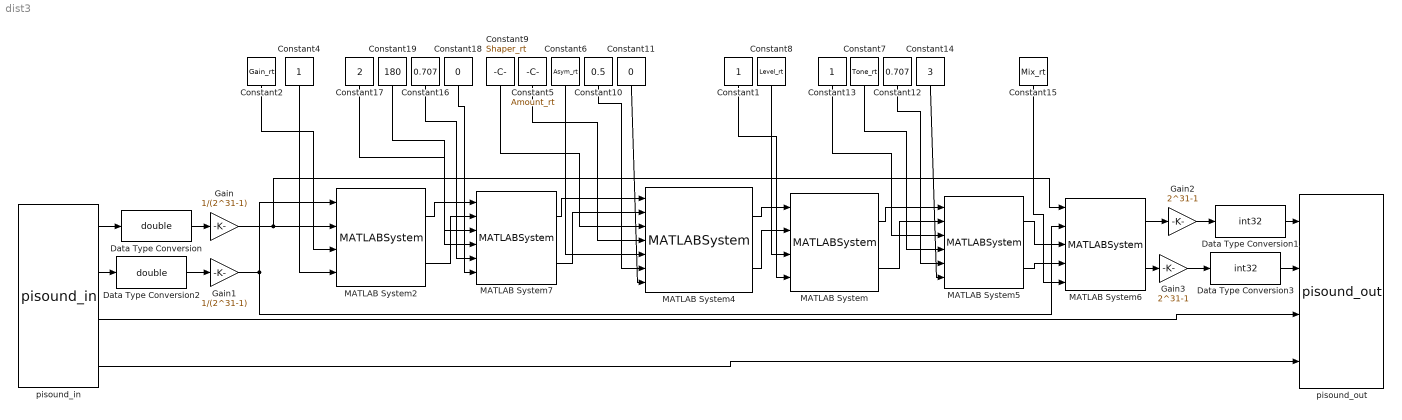
/*
 * Academic License - for use in teaching, academic research, and meeting
 * course requirements at degree granting institutions only.  Not for
 * government, commercial, or other organizational use.
 *
 * File: dist3.c
 *
 * Code generated for Simulink model 'dist3'.
 *
 * Model version                  : 1.38
 * Simulink Coder version         : 25.2 (R2025b) 28-Jul-2025
 * C/C++ source code generated on : Thu Feb 26 14:59:43 2026
 *
 * Target selection: ert.tlc
 * Embedded hardware selection: Intel->x86-64 (Windows64)
 * Code generation objectives: Unspecified
 * Validation result: Not run
 */

#include "dist3.h"
#include "rtwtypes.h"
#include "dist3_types.h"
#include "dist3_private.h"
#include "rt_nonfinite.h"
#include <math.h>
#include <string.h>

/* Block signals (default storage) */
B_dist3_T dist3_B;

/* Block states (default storage) */
DW_dist3_T dist3_DW;

/* Real-time model */
static RT_MODEL_dist3_T dist3_M_;
RT_MODEL_dist3_T *const dist3_M = &dist3_M_;

/* Forward declaration for local functions */
static void dist3_filter(real_T b[3], real_T a[3], const real_T x[128], const
  real_T zi[2], real_T y[128], real_T zf[2]);

/* Forward declaration for local functions */
static boolean_T dist3_isequal(const real_T varargin_1[257], const real_T
  varargin_2[257]);
static void dist3_filter_m(const real_T b[15], const real_T x[256], const real_T
  zi[14], real_T y[256], real_T zf[14]);
static void dist3_filter_mb(const real_T b[15], const real_T x[512], const
  real_T zi[14], real_T y[512], real_T zf[14]);
static real_T dist3_lut_ws_sys_shapeOne(const lut_ws_sys_dist3_T *obj, real_T x,
  uint8_T md, real_T drive, real_T b, real_T cheb3, real_T cheb5, const real_T
  xGrid[257], const real_T yGrid[257]);
static void dis_lut_ws_sys_processChannelOS(const lut_ws_sys_dist3_T *obj, const
  real_T x[128], uint8_T os, uint8_T md, real_T drive, real_T b, real_T cheb3,
  real_T cheb5, const real_T xGrid[257], const real_T yGrid[257], real_T zUp1[14],
  real_T zUp2[14], real_T zDn1[14], real_T zDn2[14], real_T y[128]);
static void dist3_filter(real_T b[3], real_T a[3], const real_T x[128], const
  real_T zi[2], real_T y[128], real_T zf[2])
{
  int32_T b_j;
  int32_T e_k;
  int32_T naxpy;

  /* Start for MATLABSystem: '<Root>/MATLAB System5' */
  if ((!rtIsInf(a[0])) && (!rtIsNaN(a[0])) && (!(a[0] == 0.0)) && (a[0] != 1.0))
  {
    b[0] /= a[0];
    b[1] /= a[0];
    b[2] /= a[0];
    a[1] /= a[0];
    a[2] /= a[0];
    a[0] = 1.0;
  }

  zf[0] = 0.0;
  y[0] = zi[0];
  zf[1] = 0.0;
  y[1] = zi[1];
  memset(&y[2], 0, 126U * sizeof(real_T));
  for (e_k = 0; e_k < 128; e_k++) {
    real_T as;
    int32_T y_tmp;

    /* Start for MATLABSystem: '<Root>/MATLAB System5' */
    if (128 - e_k <= 3) {
      naxpy = 128 - e_k;
    } else {
      naxpy = 3;
    }

    for (b_j = 0; b_j < naxpy; b_j++) {
      y_tmp = e_k + b_j;

      /* Start for MATLABSystem: '<Root>/MATLAB System5' */
      y[y_tmp] += x[e_k] * b[b_j];
    }

    /* Start for MATLABSystem: '<Root>/MATLAB System5' */
    if (127 - e_k <= 2) {
      naxpy = 127 - e_k;
    } else {
      naxpy = 2;
    }

    as = -y[e_k];
    for (b_j = 0; b_j < naxpy; b_j++) {
      y_tmp = (b_j + e_k) + 1;
      y[y_tmp] += a[b_j + 1] * as;
    }
  }

  for (e_k = 0; e_k < 2; e_k++) {
    for (naxpy = 0; naxpy <= e_k; naxpy++) {
      /* Start for MATLABSystem: '<Root>/MATLAB System5' */
      zf[naxpy] += b[(naxpy - e_k) + 2] * x[e_k + 126];
    }
  }

  for (e_k = 0; e_k < 2; e_k++) {
    for (naxpy = 0; naxpy <= e_k; naxpy++) {
      /* Start for MATLABSystem: '<Root>/MATLAB System5' */
      zf[naxpy] += a[(naxpy - e_k) + 2] * -y[e_k + 126];
    }
  }
}

real_T rt_powd_snf(real_T u0, real_T u1)
{
  real_T y;
  if (rtIsNaN(u0) || rtIsNaN(u1)) {
    y = (rtNaN);
  } else {
    real_T tmp;
    real_T tmp_0;
    tmp = fabs(u0);
    tmp_0 = fabs(u1);
    if (rtIsInf(u1)) {
      if (tmp == 1.0) {
        y = 1.0;
      } else if (tmp > 1.0) {
        if (u1 > 0.0) {
          y = (rtInf);
        } else {
          y = 0.0;
        }
      } else if (u1 > 0.0) {
        y = 0.0;
      } else {
        y = (rtInf);
      }
    } else if (tmp_0 == 0.0) {
      y = 1.0;
    } else if (tmp_0 == 1.0) {
      if (u1 > 0.0) {
        y = u0;
      } else {
        y = 1.0 / u0;
      }
    } else if (u1 == 2.0) {
      y = u0 * u0;
    } else if ((u1 == 0.5) && (u0 >= 0.0)) {
      y = sqrt(u0);
    } else if ((u0 < 0.0) && (u1 > floor(u1))) {
      y = (rtNaN);
    } else {
      y = pow(u0, u1);
    }
  }

  return y;
}

/* System initialize for atomic system: */
void dist3_MATLABSystem5_Init(DW_MATLABSystem5_dist3_T *localDW)
{
  /* Start for MATLABSystem: '<Root>/MATLAB System5' */
  localDW->objisempty = true;
  localDW->obj.isInitialized = 1;

  /*  arranca en bypass */
  localDW->obj.b[0] = 1.0;
  localDW->obj.a[0] = 1.0;
  localDW->obj.b[1] = 0.0;
  localDW->obj.a[1] = 0.0;
  localDW->obj.b[2] = 0.0;
  localDW->obj.a[2] = 0.0;

  /*  fuerza recálculo en el primer frame */
  localDW->obj.lastType = MAX_uint8_T;
  localDW->obj.lastFreq = (rtNaN);
  localDW->obj.lastQ = (rtNaN);
  localDW->obj.lastGain = (rtNaN);

  /* InitializeConditions for MATLABSystem: '<Root>/MATLAB System5' */
  localDW->obj.zL[0] = 0.0;
  localDW->obj.zR[0] = 0.0;
  localDW->obj.zL[1] = 0.0;
  localDW->obj.zR[1] = 0.0;
}

/* Output and update for atomic system: */
void dist3_MATLABSystem5(const real_T rtu_0[128], const real_T rtu_1[128],
  uint8_T rtu_2, real_T rtu_3, real_T rtu_4, real_T rtu_5,
  B_MATLABSystem5_dist3_T *localB, DW_MATLABSystem5_dist3_T *localDW)
{
  real_T tmp_0[3];
  real_T tmp_1[3];
  real_T tmp[2];
  real_T A;
  real_T G;
  real_T Q;
  real_T a0;
  real_T a0_tmp;
  real_T a0_tmp_0;
  real_T f;
  real_T p;
  real_T q;
  real_T sqrtA;
  real_T wc;
  int32_T t;

  /* MATLABSystem: '<Root>/MATLAB System5' */
  /*  acepta double y castea */
  if ((rtu_2 != localDW->obj.lastType) || (rtu_3 != localDW->obj.lastFreq) ||
      (rtu_4 != localDW->obj.lastQ) || (rtu_5 != localDW->obj.lastGain)) {
    f = rtu_3;
    Q = rtu_4;
    G = rtu_5;
    t = rtu_2;
    if (rtIsInf(rtu_3) || rtIsNaN(rtu_3)) {
      f = 1000.0;
    }

    if (rtIsInf(rtu_4) || rtIsNaN(rtu_4)) {
      Q = 0.707;
    }

    if (rtIsInf(rtu_5) || rtIsNaN(rtu_5)) {
      G = 0.0;
    }

    /*  límites prácticos */
    if (f < 0.1) {
      f = 0.1;
    }

    if (f > 23952.0) {
      f = 23952.0;
    }

    if (Q < 0.001) {
      Q = 0.001;
    }

    wc = f / 48000.0 * 6.2831853071795862;
    if (rtu_2 < 1) {
      t = 1;
    } else if (rtu_2 > 7) {
      t = 7;
    }

    localDW->obj.b[0] = 1.0;
    localDW->obj.a[0] = 1.0;
    localDW->obj.b[1] = 0.0;
    localDW->obj.a[1] = 0.0;
    localDW->obj.b[2] = 0.0;
    localDW->obj.a[2] = 0.0;
    switch ((uint8_T)t) {
     case 1U:
      /*  lowpass */
      /* Cálculo de los coefifientes de un Filtro Paso-Bajo de 2º orden */
      /* Parámetos de entrada:  */
      /* wo = frecuencia de corte a -3dB (en radianes) */
      /* Parametros de salida: */
      /* Coeficientes [b,a] de un filtro IIR de segundo orden */
      p = cos(wc);
      G = 1.4142135623730951 * sin(wc);

      /* Normalización de coeficientes */
      /* fvtool(b,a); */
      f = (1.0 - p) / (G + 2.0);
      localDW->obj.b[0] = f;
      localDW->obj.b[1] = (1.0 - p) * 2.0 / (G + 2.0);
      localDW->obj.b[2] = f;
      localDW->obj.a[0] = (G + 2.0) / (G + 2.0);
      localDW->obj.a[1] = -4.0 * p / (G + 2.0);
      localDW->obj.a[2] = (2.0 - G) / (G + 2.0);
      break;

     case 2U:
      /*  highpass */
      /* Cálculo de los coefifientes de un Filtro Paso-Alto de 2º orden */
      /* Parámetos de entrada:  */
      /* wo = frecuencia de corte a -3dB (en radianes) */
      /* Parametros de salida: */
      /* Coeficientes [b,a] de un filtro IIR de segundo orden */
      p = cos(wc);

      /*  Coeficientes del ecualizador */
      G = 1.4142135623730951 * sin(wc);

      /* Normalización de coeficientes */
      /*  */
      /* fvtool(b,a); */
      f = (p + 1.0) / (G + 2.0);
      localDW->obj.b[0] = f;
      localDW->obj.b[1] = (p + 1.0) * -2.0 / (G + 2.0);
      localDW->obj.b[2] = f;
      localDW->obj.a[0] = (G + 2.0) / (G + 2.0);
      localDW->obj.a[1] = -4.0 * p / (G + 2.0);
      localDW->obj.a[2] = (2.0 - G) / (G + 2.0);
      break;

     case 3U:
      /*  bandpass (0 dB peak) */
      /* Cálculo de los coefifientes de un Filtro Paso-Banda 2º orden */
      /* Parámetos de entrada:  */
      /* wo = frecuencia central (en radianes) */
      /* Q = factor de calidad */
      /*  */
      /* Parametros de salida: */
      /* Coeficientes [b,a] de un filtro IIR de segundo orden */
      G = sin(wc) / Q;

      /*  <-- Q aquí */
      /*  Coeficientes del ecualizador */
      /* Normalización de coeficientes */
      /* fvtool(b,a); */
      localDW->obj.b[0] = G / (G + 2.0);
      localDW->obj.b[1] = 0.0 / (G + 2.0);
      localDW->obj.b[2] = -G / (G + 2.0);
      localDW->obj.a[0] = (G + 2.0) / (G + 2.0);
      localDW->obj.a[1] = -4.0 * cos(wc) / (G + 2.0);
      localDW->obj.a[2] = (2.0 - G) / (G + 2.0);
      break;

     case 4U:
      /*  bandreject / notch */
      /* Cálculo de los coefifientes de un Filtro Paso-Banda 2º orden */
      /* Parámetos de entrada:  */
      /* wo = frecuencia central (en radianes) */
      /* Q = factor de calidad */
      /*  */
      /* Parametros de salida: */
      /* Coeficientes [b,a] de un filtro IIR de segundo orden */
      /*  Coeficientes del ecualizador */
      G = sin(wc) / Q;

      /* Normalización de coeficientes */
      /* fvtool(b,a); */
      f = 2.0 / (G + 2.0);
      localDW->obj.b[0] = f;
      wc = -4.0 * cos(wc) / (G + 2.0);
      localDW->obj.b[1] = wc;
      localDW->obj.b[2] = f;
      localDW->obj.a[0] = (G + 2.0) / (G + 2.0);
      localDW->obj.a[1] = wc;
      localDW->obj.a[2] = (2.0 - G) / (G + 2.0);
      break;

     case 5U:
      /*  lowshelf (RBJ, usando Q como S) */
      /* Cálculo de los coefifientes de un Filtro Paso-Banda 2º orden */
      /* Parámetos de entrada:  */
      /* wo = frecuencia central (en radianes) */
      /* Q = factor de calidad */
      /*  */
      /* Parametros de salida: */
      /* Coeficientes [b,a] de un filtro IIR de segundo orden */
      A = rt_powd_snf(10.0, G / 40.0);
      sqrtA = sqrt(A);
      p = cos(wc);
      q = sin(wc);

      /*  Coeficientes del ecualizador */
      G = 1.0 / A;
      a0_tmp = (1.0 - G) * p + (G + 1.0);
      a0_tmp_0 = 1.4142135623730951 * q / sqrtA;
      a0 = a0_tmp + a0_tmp_0;

      /* Normalización de coeficientes */
      /* fvtool(b,a); */
      f = (1.0 - A) * p + (A + 1.0);
      wc = 1.4142135623730951 * sqrtA * q;
      localDW->obj.b[0] = (f + wc) / a0;
      localDW->obj.b[1] = ((A + 1.0) * p + (1.0 - A)) * -2.0 / a0;
      localDW->obj.b[2] = (f - wc) / a0;
      localDW->obj.a[0] = a0 / a0;
      localDW->obj.a[1] = ((G + 1.0) * p + (1.0 - G)) * -2.0 / a0;
      localDW->obj.a[2] = (a0_tmp - a0_tmp_0) / a0;
      break;

     case 6U:
      /*  highshelf (RBJ, usando Q como S) */
      /* Cálculo de los coefifientes de un Filtro Paso-Banda 2º orden */
      /* Parámetos de entrada:  */
      /* wo = frecuencia central (en radianes) */
      /* Q = factor de calidad */
      /*  */
      /* Parametros de salida: */
      /* Coeficientes [b,a] de un filtro IIR de segundo orden */
      A = rt_powd_snf(10.0, G / 40.0);
      sqrtA = sqrt(A);
      p = cos(wc);
      q = sin(wc);

      /*  Coeficientes del ecualizador */
      G = (1.0 - A) * p + (A + 1.0);
      a0_tmp = 1.4142135623730951 * sqrtA * q;
      a0 = G + a0_tmp;
      a0_tmp_0 = A * A;

      /* Normalización de coeficientes */
      /* fvtool(b,a); */
      f = 1.0 / A;
      wc = (1.0 - f) * p + (f + 1.0);
      sqrtA = 1.4142135623730951 * q / sqrtA;
      localDW->obj.b[0] = (wc + sqrtA) * a0_tmp_0 / a0;
      localDW->obj.b[1] = ((f + 1.0) * p + (1.0 - f)) * -2.0 * a0_tmp_0 / a0;
      localDW->obj.b[2] = (wc - sqrtA) * a0_tmp_0 / a0;
      localDW->obj.a[0] = a0 / a0;
      localDW->obj.a[1] = ((A + 1.0) * p + (1.0 - A)) * -2.0 / a0;
      localDW->obj.a[2] = (G - a0_tmp) / a0;
      break;

     case 7U:
      /*  peaking / centershelf */
      /* Cálculo de los coefifientes de un Filtro Paso-Banda 2º orden */
      /* Parámetos de entrada:  */
      /* wo = frecuencia central (en radianes) */
      /* Q = factor de calidad */
      /*  */
      /* Parametros de salida: */
      /* Coeficientes [b,a] de un filtro IIR de segundo orden */
      A = rt_powd_snf(10.0, G / 40.0);
      f = sin(wc) / (2.0 * Q);

      /*  Coeficientes del ecualizador */
      G = f / A;

      /* Normalización de coeficientes */
      /* fvtool(b,a); */
      f *= A;
      localDW->obj.b[0] = (f + 1.0) / (G + 1.0);
      wc = -2.0 * cos(wc) / (G + 1.0);
      localDW->obj.b[1] = wc;
      localDW->obj.b[2] = (1.0 - f) / (G + 1.0);
      localDW->obj.a[0] = (G + 1.0) / (G + 1.0);
      localDW->obj.a[1] = wc;
      localDW->obj.a[2] = (1.0 - G) / (G + 1.0);
      break;
    }

    localDW->obj.lastType = rtu_2;
    localDW->obj.lastFreq = rtu_3;
    localDW->obj.lastQ = Q;
    localDW->obj.lastGain = rtu_5;
  }

  /*  bp es logical */
  for (t = 0; t < 2; t++) {
    tmp[t] = localDW->obj.zL[t];
  }

  for (t = 0; t < 3; t++) {
    tmp_0[t] = localDW->obj.b[t];
  }

  for (t = 0; t < 3; t++) {
    tmp_1[t] = localDW->obj.a[t];
  }

  /* MATLABSystem: '<Root>/MATLAB System5' */
  dist3_filter(tmp_0, tmp_1, rtu_0, tmp, localB->MATLABSystem5_o1,
               localDW->obj.zL);

  /* MATLABSystem: '<Root>/MATLAB System5' */
  for (t = 0; t < 2; t++) {
    tmp[t] = localDW->obj.zR[t];
  }

  for (t = 0; t < 3; t++) {
    tmp_0[t] = localDW->obj.b[t];
  }

  for (t = 0; t < 3; t++) {
    tmp_1[t] = localDW->obj.a[t];
  }

  /* MATLABSystem: '<Root>/MATLAB System5' */
  dist3_filter(tmp_0, tmp_1, rtu_1, tmp, localB->MATLABSystem5_o2,
               localDW->obj.zR);

  /* MATLABSystem: '<Root>/MATLAB System5' */
  localDW->zL[0] = localDW->obj.zL[0];
  localDW->zR[0] = localDW->obj.zR[0];
  localDW->zL[1] = localDW->obj.zL[1];
  localDW->zR[1] = localDW->obj.zR[1];
}

/* Termination for atomic system: */
void dist3_MATLABSystem5_Term(DW_MATLABSystem5_dist3_T *localDW)
{
  /* Terminate for MATLABSystem: '<Root>/MATLAB System5' */
  localDW->zL[0] = localDW->obj.zL[0];
  localDW->zR[0] = localDW->obj.zR[0];
  localDW->zL[1] = localDW->obj.zL[1];
  localDW->zR[1] = localDW->obj.zR[1];
}

static boolean_T dist3_isequal(const real_T varargin_1[257], const real_T
  varargin_2[257])
{
  int32_T b_k;
  boolean_T exitg1;
  boolean_T p;
  boolean_T p_0;
  p = false;

  /* Start for MATLABSystem: '<Root>/MATLAB System4' */
  p_0 = true;
  b_k = 0;
  exitg1 = false;
  while ((!exitg1) && (b_k < 257)) {
    if (!(varargin_1[b_k] == varargin_2[b_k])) {
      p_0 = false;
      exitg1 = true;
    } else {
      b_k++;
    }
  }

  if (p_0) {
    p = true;
  }

  return p;
}

real_T rt_roundd_snf(real_T u)
{
  real_T y;
  if (fabs(u) < 4.503599627370496E+15) {
    if (u >= 0.5) {
      y = floor(u + 0.5);
    } else if (u > -0.5) {
      y = u * 0.0;
    } else {
      y = ceil(u - 0.5);
    }
  } else {
    y = u;
  }

  return y;
}

static void dist3_filter_m(const real_T b[15], const real_T x[256], const real_T
  zi[14], real_T y[256], real_T zf[14])
{
  int32_T b_j;
  int32_T b_k;
  for (b_k = 0; b_k < 14; b_k++) {
    zf[b_k] = 0.0;
    y[b_k] = zi[b_k];
  }

  memset(&y[14], 0, 242U * sizeof(real_T));
  for (b_k = 0; b_k < 15; b_k++) {
    for (b_j = b_k + 1; b_j < 257; b_j++) {
      y[b_j - 1] += x[(b_j - b_k) - 1] * b[b_k];
    }
  }

  for (b_k = 0; b_k < 14; b_k++) {
    for (b_j = 0; b_j <= b_k; b_j++) {
      /* Start for MATLABSystem: '<Root>/MATLAB System4' */
      zf[b_j] += b[(b_j - b_k) + 14] * x[b_k + 242];
    }
  }
}

static void dist3_filter_mb(const real_T b[15], const real_T x[512], const
  real_T zi[14], real_T y[512], real_T zf[14])
{
  int32_T b_j;
  int32_T b_k;
  for (b_k = 0; b_k < 14; b_k++) {
    zf[b_k] = 0.0;
    y[b_k] = zi[b_k];
  }

  memset(&y[14], 0, 498U * sizeof(real_T));
  for (b_k = 0; b_k < 15; b_k++) {
    for (b_j = b_k + 1; b_j < 513; b_j++) {
      y[b_j - 1] += x[(b_j - b_k) - 1] * b[b_k];
    }
  }

  for (b_k = 0; b_k < 14; b_k++) {
    for (b_j = 0; b_j <= b_k; b_j++) {
      /* Start for MATLABSystem: '<Root>/MATLAB System4' */
      zf[b_j] += b[(b_j - b_k) + 14] * x[b_k + 498];
    }
  }
}

static real_T dist3_lut_ws_sys_shapeOne(const lut_ws_sys_dist3_T *obj, real_T x,
  uint8_T md, real_T drive, real_T b, real_T cheb3, real_T cheb5, const real_T
  xGrid[257], const real_T yGrid[257])
{
  real_T y;

  /*  SHAPER (una muestra) */
  /*  pre: drive + bias */
  y = drive * x + b;

  /* Start for MATLABSystem: '<Root>/MATLAB System4' */
  if (rtIsInf(y) || rtIsNaN(y)) {
    y = 0.0;
  }

  /*  limitar a rango razonable antes de funciones no lineales */
  /* u = clamp(obj, u, -1.0, 1.0); */
  if (md == 1) {
    /*  ---- Hard clip simétrico ---- */
    if (y < -1.0) {
      y = -1.0;
    } else if (y > 1.0) {
      y = 1.0;
    }
  } else if (md == 2) {
    /*  ---- Soft clip polinómico (tipo 3er orden, continuo) ---- */
    if (y < -2.0) {
      y = -2.0;
    } else if (y > 2.0) {
      y = 2.0;
    }

    /*  y = u - u^3/3 para |u|<=1  (suave, sin discontinuidad) */
    /*  (si quieres más agresivo, usa otro polinomio) */
    y -= y * y * y / 3.0;
  } else if (md == 3) {
    /*  ---- Tanh (soft saturación) ---- */
    /*  Normalizamos ligeramente para que tanh(1) no sea demasiado bajo */
    y = tanh(2.0 * y) / 0.9640275800758169;
  } else if (md == 4) {
    /*  ---- Asym clip (bias ya aplicado) + hard clip ---- */
    /*  Asimetría sale de b; aquí solo clippeamos. */
    /* y = clamp(obj, u, -1.0, 1.0); */
    /*  recorta antes en negativo */
    if (y < -0.6) {
      y = -0.6;
    } else if (y > 1.0) {
      y = 1.0;
    }

    /*  renormaliza */
  } else if (md == 5) {
    real_T den;
    real_T u2;

    /*  ---- Chebyshev controlado (T1 + a3*T3 + a5*T5) ---- */
    /*  Para x en [-1,1]: */
    /*  T1=u */
    /*  T3=4u^3-3u */
    /*  T5=16u^5-20u^3+5u */
    if (y < -1.0) {
      y = -1.0;
    } else if (y > 1.0) {
      y = 1.0;
    }

    u2 = y * y;
    den = u2 * y;
    y = ((den * u2 * 16.0 - 20.0 * den) + 5.0 * y) * cheb5 + ((4.0 * den - 3.0 *
      y) * cheb3 + y);

    /*  re-limit (Chebyshev puede exceder) */
    if (y < -1.0) {
      y = -1.0;
    } else if (y > 1.0) {
      y = 1.0;
    }

    /*  ---- User LUT: y = interp(u; XUser,YUser) ---- */
    /*  Interpolación lineal LUT (saturación) */
  } else if (y <= xGrid[0]) {
    y = yGrid[0];
  } else if (y >= xGrid[256]) {
    y = yGrid[256];
  } else {
    real_T den;
    real_T u2;
    int32_T b_i;
    int32_T k;
    boolean_T exitg1;
    k = 1;
    b_i = 0;
    exitg1 = false;
    while ((!exitg1) && (b_i < 256)) {
      if (y < xGrid[b_i + 1]) {
        k = b_i + 1;
        exitg1 = true;
      } else {
        b_i++;
      }
    }

    u2 = xGrid[k - 1];
    den = xGrid[k] - u2;
    if ((den <= obj->Eps) || (rtIsInf(den) || rtIsNaN(den))) {
      y = yGrid[k - 1];
    } else {
      real_T y_tmp;
      y_tmp = yGrid[k - 1];
      y = (y - u2) / den * (yGrid[k] - y_tmp) + y_tmp;
    }
  }

  /*  post: opcionalmente quitar bias DC introducido (simple, estático) */
  /*  En audio real, quitar DC es mejor con HPF muy suave; aquí hacemos corrección estática: */
  /* y = y - b; */
  if (rtIsInf(y) || rtIsNaN(y)) {
    y = 0.0;
  }

  /*  limitar salida final */
  if (y < -1.0) {
    y = -1.0;
  } else if (y > 1.0) {
    y = 1.0;
  }

  /* End of Start for MATLABSystem: '<Root>/MATLAB System4' */
  return y;
}

static void dis_lut_ws_sys_processChannelOS(const lut_ws_sys_dist3_T *obj, const
  real_T x[128], uint8_T os, uint8_T md, real_T drive, real_T b, real_T cheb3,
  real_T cheb5, const real_T xGrid[257], const real_T yGrid[257], real_T zUp1[14],
  real_T zUp2[14], real_T zDn1[14], real_T zDn2[14], real_T y[128])
{
  real_T b_y2_0[512];
  real_T u_0[512];
  real_T y4[512];
  real_T b_y2[256];
  real_T u[256];
  real_T y2[256];
  int32_T i;
  static const real_T tmp[15] = { -0.000106360599, 0.0, 0.00695210045, 0.0,
    -0.0516884606, 0.0, 0.294825487, 0.500034468, 0.294825487, 0.0,
    -0.0516884606, 0.0, 0.00695210045, 0.0, -0.000106360599 };

  real_T zUp1_0[14];

  /* Start for MATLABSystem: '<Root>/MATLAB System4' */
  if (os == 0) {
    for (i = 0; i < 128; i++) {
      y[i] = dist3_lut_ws_sys_shapeOne(obj, x[i], md, drive, b, cheb3, cheb5,
        xGrid, yGrid);
    }
  } else if (os == 1) {
    memset(&u[0], 0, sizeof(real_T) << 8U);
    for (i = 0; i < 128; i++) {
      u[i << 1] = x[i];
    }

    memcpy(&zUp1_0[0], &zUp1[0], 14U * sizeof(real_T));
    dist3_filter_m(tmp, u, zUp1_0, b_y2, zUp1);

    /*  2N */
    for (i = 0; i < 256; i++) {
      y2[i] = dist3_lut_ws_sys_shapeOne(obj, b_y2[i], md, drive, b, cheb3, cheb5,
        xGrid, yGrid);
    }

    memcpy(&zUp1_0[0], &zDn1[0], 14U * sizeof(real_T));
    dist3_filter_m(tmp, y2, zUp1_0, u, zDn1);
    for (i = 0; i < 128; i++) {
      y[i] = u[i << 1];
    }

    /*  N */
  } else {
    memset(&u[0], 0, sizeof(real_T) << 8U);
    for (i = 0; i < 128; i++) {
      u[i << 1] = x[i];
    }

    memcpy(&zUp1_0[0], &zUp1[0], 14U * sizeof(real_T));
    dist3_filter_m(tmp, u, zUp1_0, b_y2, zUp1);

    /*  2N */
    memset(&u_0[0], 0, sizeof(real_T) << 9U);
    for (i = 0; i < 256; i++) {
      u_0[i << 1] = b_y2[i];
    }

    memcpy(&zUp1_0[0], &zUp2[0], 14U * sizeof(real_T));
    dist3_filter_mb(tmp, u_0, zUp1_0, b_y2_0, zUp2);

    /*  4N */
    for (i = 0; i < 512; i++) {
      y4[i] = dist3_lut_ws_sys_shapeOne(obj, b_y2_0[i], md, drive, b, cheb3,
        cheb5, xGrid, yGrid);
    }

    memcpy(&zUp1_0[0], &zDn2[0], 14U * sizeof(real_T));
    dist3_filter_mb(tmp, y4, zUp1_0, u_0, zDn2);

    /*  2N */
    for (i = 0; i < 256; i++) {
      b_y2[i] = u_0[i << 1];
    }

    memcpy(&zUp1_0[0], &zDn1[0], 14U * sizeof(real_T));
    dist3_filter_m(tmp, b_y2, zUp1_0, u, zDn1);
    for (i = 0; i < 128; i++) {
      y[i] = u[i << 1];
    }

    /*  N */
  }

  /* End of Start for MATLABSystem: '<Root>/MATLAB System4' */
}

/* Model step function */
void dist3_step(void)
{
  real_T xGrid[257];
  real_T yGrid[257];
  real_T rtb_Gain[128];
  real_T rtb_Gain1[128];
  real_T rtb_MATLABSystem2_o1[128];
  real_T rtb_MATLABSystem2_o2[128];
  real_T c[14];
  real_T d[14];
  real_T e[14];
  real_T f[14];
  real_T a_;
  real_T b;
  real_T g;
  real_T gd1_;
  real_T gd2_;
  real_T gw1_;
  real_T gw2_;
  int32_T Mu;
  int32_T b_k;
  int32_T b_n;
  int32_T i;

  /* S-Function (pisound_in): '<Root>/pisound_in' */

  /* Level2 S-Function Block: '<Root>/pisound_in' (pisound_in) */
  {
    SimStruct *rts = dist3_M->childSfunctions[0];
    sfcnOutputs(rts,0);
  }

  for (i = 0; i < 128; i++) {
    /* Gain: '<Root>/Gain' incorporates:
     *  DataTypeConversion: '<Root>/Data Type Conversion'
     */
    rtb_Gain[i] = dist3_P.Gain_Gain * (real_T)dist3_B.pisound_in_o1[i];

    /* Gain: '<Root>/Gain1' incorporates:
     *  DataTypeConversion: '<Root>/Data Type Conversion2'
     */
    rtb_Gain1[i] = dist3_P.Gain1_Gain * (real_T)dist3_B.pisound_in_o2[i];
  }

  /* MATLABSystem: '<Root>/MATLAB System2' incorporates:
   *  Constant: '<Root>/Constant2'
   *  Constant: '<Root>/Constant4'
   */
  g = dist3_P.Gain_rt;

  /*  g es Nx1 */
  if (dist3_P.Constant4_Value != 0) {
    g = rt_powd_snf(10.0, (real_T)dist3_P.Gain_rt / 20.0);

    /*  dB -> lineal, elemento a elemento */
  }

  /*  bp es logical */
  /*  elemento a elemento */
  for (i = 0; i < 128; i++) {
    rtb_MATLABSystem2_o1[i] = rtb_Gain1[i] * g;
    rtb_MATLABSystem2_o2[i] = rtb_Gain[i] * g;
  }

  /* End of MATLABSystem: '<Root>/MATLAB System2' */

  /* Constant: '<Root>/Constant17' incorporates:
   *  Constant: '<Root>/Constant16'
   *  Constant: '<Root>/Constant18'
   *  Constant: '<Root>/Constant19'
   */
  dist3_MATLABSystem5(rtb_MATLABSystem2_o1, rtb_MATLABSystem2_o2,
                      dist3_P.Constant17_Value, dist3_P.Constant19_Value,
                      dist3_P.Constant16_Value, dist3_P.Constant18_Value,
                      &dist3_B.MATLABSystem7, &dist3_DW.MATLABSystem7);

  /* MATLABSystem: '<Root>/MATLAB System4' incorporates:
   *  Constant: '<Root>/Constant5'
   *  Constant: '<Root>/Constant6'
   *  Constant: '<Root>/Constant9'
   */
  if (dist3_DW.obj.ModeDefault != dist3_P.MATLABSystem4_ModeDefault) {
    dist3_DW.obj.ModeDefault = dist3_P.MATLABSystem4_ModeDefault;
  }

  if (dist3_DW.obj.AmountDefault != dist3_P.MATLABSystem4_AmountDefault) {
    dist3_DW.obj.AmountDefault = dist3_P.MATLABSystem4_AmountDefault;
  }

  if (dist3_DW.obj.AsymDefault != dist3_P.MATLABSystem4_AsymDefault) {
    dist3_DW.obj.AsymDefault = dist3_P.MATLABSystem4_AsymDefault;
  }

  if (dist3_DW.obj.Cheb3Default != dist3_P.MATLABSystem4_Cheb3Default) {
    dist3_DW.obj.Cheb3Default = dist3_P.MATLABSystem4_Cheb3Default;
  }

  if (dist3_DW.obj.Cheb5Default != dist3_P.MATLABSystem4_Cheb5Default) {
    dist3_DW.obj.Cheb5Default = dist3_P.MATLABSystem4_Cheb5Default;
  }

  if (!dist3_isequal(dist3_DW.obj.XUser, dist3_P.MATLABSystem4_XUser)) {
    memcpy(&dist3_DW.obj.XUser[0], &dist3_P.MATLABSystem4_XUser[0], 257U *
           sizeof(real_T));
  }

  if (!dist3_isequal(dist3_DW.obj.YUser, dist3_P.MATLABSystem4_YUser)) {
    memcpy(&dist3_DW.obj.YUser[0], &dist3_P.MATLABSystem4_YUser[0], 257U *
           sizeof(real_T));
  }

  if (dist3_DW.obj.MUser != dist3_P.MATLABSystem4_MUser) {
    dist3_DW.obj.MUser = dist3_P.MATLABSystem4_MUser;
  }

  if (dist3_DW.obj.Eps != dist3_P.MATLABSystem4_Eps) {
    dist3_DW.obj.Eps = dist3_P.MATLABSystem4_Eps;
  }

  /*  inL,inR,mode,amount,asym,cheb3,cheb5 */
  /*  Nloc = size(inL,1); */
  /*  outL = zeros(Nloc,1); */
  /*  outR = zeros(Nloc,1); */
  /*  bp es logical */
  /*  --- defaults --- */
  b_n = (int32_T)fmin(fmax(dist3_P.Shaper_rt, 1.0), 6.0);

  /*  por ejemplo */
  if (dist3_P.Asym_rt < -0.5) {
    b = -0.5;
  } else if (dist3_P.Asym_rt > 0.5) {
    b = 0.5;
  } else {
    b = dist3_P.Asym_rt;
  }

  /*  drive interno (lineal) */
  if (dist3_P.Amount_rt < 0.0) {
    g = 0.0;
  } else if (dist3_P.Amount_rt > 60.0) {
    g = 60.0;
  } else {
    g = dist3_P.Amount_rt;
  }

  g = rt_powd_snf(10.0, g / 20.0);

  /*  preparar LUT usuario (si aplica) */
  /*  (tamaño fijo M, relleno seguro) */
  memset(&xGrid[0], 0, 257U * sizeof(real_T));
  memset(&yGrid[0], 0, 257U * sizeof(real_T));
  if (b_n == 6) {
    i = (int32_T)rt_roundd_snf(fmin(fmax(dist3_DW.obj.MUser, 1.0), 257.0));
    memcpy(&xGrid[0], &dist3_DW.obj.XUser[0], (uint32_T)((i - 1) + 1) * sizeof
           (real_T));
    memcpy(&yGrid[0], &dist3_DW.obj.YUser[0], (uint32_T)((i - 1) + 1) * sizeof
           (real_T));
    Mu = i + 1;
    for (b_k = Mu; b_k < 258; b_k++) {
      xGrid[b_k - 1] = xGrid[i - 1];
      yGrid[b_k - 1] = yGrid[i - 1];
    }
  }

  /* Start for MATLABSystem: '<Root>/MATLAB System4' incorporates:
   *  Constant: '<Root>/Constant10'
   *  Constant: '<Root>/Constant11'
   *  MATLABSystem: '<Root>/MATLAB System7'
   */
  memcpy(&c[0], &dist3_DW.obj.zUp1L[0], 14U * sizeof(real_T));
  memcpy(&d[0], &dist3_DW.obj.zUp2L[0], 14U * sizeof(real_T));
  memcpy(&e[0], &dist3_DW.obj.zDn1L[0], 14U * sizeof(real_T));
  memcpy(&f[0], &dist3_DW.obj.zDn2L[0], 14U * sizeof(real_T));
  dis_lut_ws_sys_processChannelOS(&dist3_DW.obj,
    dist3_B.MATLABSystem7.MATLABSystem5_o1, 2, (uint8_T)b_n, g, b,
    dist3_P.Constant10_Value, dist3_P.Constant11_Value, xGrid, yGrid, c, d, e, f,
    rtb_MATLABSystem2_o1);
  for (i = 0; i < 14; i++) {
    /* MATLABSystem: '<Root>/MATLAB System4' */
    dist3_DW.obj.zUp1L[i] = c[i];
    dist3_DW.obj.zUp2L[i] = d[i];
    dist3_DW.obj.zDn1L[i] = e[i];
    dist3_DW.obj.zDn2L[i] = f[i];

    /* Start for MATLABSystem: '<Root>/MATLAB System4' */
    c[i] = dist3_DW.obj.zUp1R[i];
    d[i] = dist3_DW.obj.zUp2R[i];
    e[i] = dist3_DW.obj.zDn1R[i];
    f[i] = dist3_DW.obj.zDn2R[i];
  }

  /* Start for MATLABSystem: '<Root>/MATLAB System4' incorporates:
   *  Constant: '<Root>/Constant10'
   *  Constant: '<Root>/Constant11'
   *  MATLABSystem: '<Root>/MATLAB System7'
   */
  dis_lut_ws_sys_processChannelOS(&dist3_DW.obj,
    dist3_B.MATLABSystem7.MATLABSystem5_o2, 2, (uint8_T)b_n, g, b,
    dist3_P.Constant10_Value, dist3_P.Constant11_Value, xGrid, yGrid, c, d, e, f,
    rtb_MATLABSystem2_o2);

  /* MATLABSystem: '<Root>/MATLAB System4' */
  memcpy(&dist3_DW.obj.zUp1R[0], &c[0], 14U * sizeof(real_T));
  memcpy(&dist3_DW.obj.zUp2R[0], &d[0], 14U * sizeof(real_T));
  memcpy(&dist3_DW.obj.zDn1R[0], &e[0], 14U * sizeof(real_T));
  memcpy(&dist3_DW.obj.zDn2R[0], &f[0], 14U * sizeof(real_T));

  /* MATLABSystem: '<Root>/MATLAB System' incorporates:
   *  Constant: '<Root>/Constant1'
   *  Constant: '<Root>/Constant8'
   *  MATLABSystem: '<Root>/MATLAB System4'
   */
  g = dist3_P.Level_rt;

  /*  g es Nx1 */
  if (dist3_P.Constant1_Value != 0) {
    g = rt_powd_snf(10.0, dist3_P.Level_rt / 20.0);

    /*  dB -> lineal, elemento a elemento */
  }

  /*  bp es logical */
  /*  elemento a elemento */
  for (b_n = 0; b_n < 128; b_n++) {
    rtb_MATLABSystem2_o1[b_n] *= g;
    rtb_MATLABSystem2_o2[b_n] *= g;
  }

  /* End of MATLABSystem: '<Root>/MATLAB System' */

  /* Constant: '<Root>/Constant13' incorporates:
   *  Constant: '<Root>/Constant12'
   *  Constant: '<Root>/Constant14'
   *  Constant: '<Root>/Constant7'
   */
  dist3_MATLABSystem5(rtb_MATLABSystem2_o1, rtb_MATLABSystem2_o2,
                      dist3_P.Constant13_Value, dist3_P.Tone_rt,
                      dist3_P.Constant12_Value, dist3_P.Constant14_Value,
                      &dist3_B.MATLABSystem5, &dist3_DW.MATLABSystem5);

  /* MATLABSystem: '<Root>/MATLAB System6' incorporates:
   *  Constant: '<Root>/Constant15'
   */
  if (dist3_DW.obj_e.SmoothTime != dist3_P.MATLABSystem6_SmoothTime) {
    dist3_DW.obj_e.SmoothTime = dist3_P.MATLABSystem6_SmoothTime;
  }

  if (dist3_DW.obj_e.IndepInDB != dist3_P.MATLABSystem6_IndepInDB) {
    dist3_DW.obj_e.IndepInDB = dist3_P.MATLABSystem6_IndepInDB;
  }

  /*  inL,inR,wetL,wetR,p1 (+p2 si Mode=2) */
  /*  dummy */
  b = dist3_P.Mix_rt;
  if (dist3_P.Mix_rt < 0.0) {
    b = 0.0;
  } else if (dist3_P.Mix_rt > 1.0) {
    b = 1.0;
  }

  a_ = dist3_DW.obj_e.a;
  gd1_ = dist3_DW.obj_e.gd1;
  gd2_ = dist3_DW.obj_e.gd2;
  gw1_ = dist3_DW.obj_e.gw1;
  gw2_ = dist3_DW.obj_e.gw2;

  /*  más robusto que obj.N */
  for (b_n = 0; b_n < 128; b_n++) {
    gd1_ += ((1.0 - b) - gd1_) * a_;
    gw1_ += (b - gw1_) * a_;
    gd2_ += ((1.0 - b) - gd2_) * a_;
    gw2_ += (b - gw2_) * a_;

    /* DataTypeConversion: '<Root>/Data Type Conversion1' incorporates:
     *  Gain: '<Root>/Gain2'
     *  MATLABSystem: '<Root>/MATLAB System5'
     */
    g = floor((gd1_ * rtb_Gain[b_n] + gw1_ *
               dist3_B.MATLABSystem5.MATLABSystem5_o1[b_n]) * dist3_P.Gain2_Gain);
    if (rtIsNaN(g) || rtIsInf(g)) {
      g = 0.0;
    } else {
      g = fmod(g, 4.294967296E+9);
    }

    /* DataTypeConversion: '<Root>/Data Type Conversion1' */
    dist3_B.DataTypeConversion1[b_n] = g < 0.0 ? -(int32_T)(uint32_T)-g :
      (int32_T)(uint32_T)g;

    /* DataTypeConversion: '<Root>/Data Type Conversion3' incorporates:
     *  Gain: '<Root>/Gain3'
     *  MATLABSystem: '<Root>/MATLAB System5'
     */
    g = floor((gd2_ * rtb_Gain1[b_n] + gw2_ *
               dist3_B.MATLABSystem5.MATLABSystem5_o2[b_n]) * dist3_P.Gain3_Gain);
    if (rtIsNaN(g) || rtIsInf(g)) {
      g = 0.0;
    } else {
      g = fmod(g, 4.294967296E+9);
    }

    /* DataTypeConversion: '<Root>/Data Type Conversion3' */
    dist3_B.DataTypeConversion3[b_n] = g < 0.0 ? -(int32_T)(uint32_T)-g :
      (int32_T)(uint32_T)g;
  }

  dist3_DW.obj_e.gd1 = gd1_;
  dist3_DW.obj_e.gd2 = gd2_;
  dist3_DW.obj_e.gw1 = gw1_;
  dist3_DW.obj_e.gw2 = gw2_;

  /* End of MATLABSystem: '<Root>/MATLAB System6' */

  /* S-Function (pisound_out): '<Root>/pisound_out' */

  /* Level2 S-Function Block: '<Root>/pisound_out' (pisound_out) */
  {
    SimStruct *rts = dist3_M->childSfunctions[1];
    sfcnOutputs(rts,0);
  }

  /* Update absolute time for base rate */
  /* The "clockTick0" counts the number of times the code of this task has
   * been executed. The absolute time is the multiplication of "clockTick0"
   * and "Timing.stepSize0". Size of "clockTick0" ensures timer will not
   * overflow during the application lifespan selected.
   */
  dist3_M->Timing.t[0] =
    ((time_T)(++dist3_M->Timing.clockTick0)) * dist3_M->Timing.stepSize0;
}
